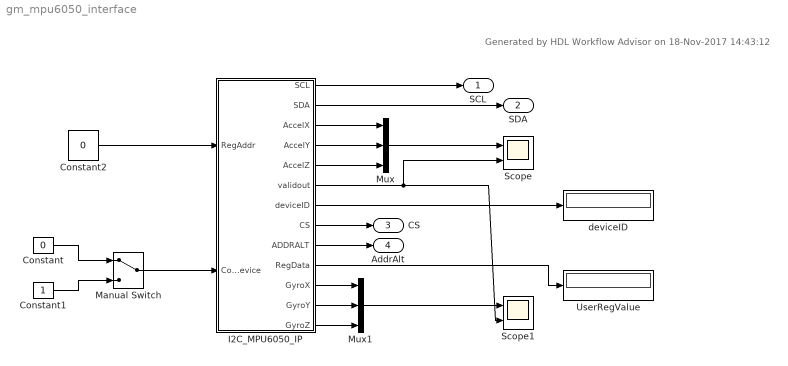
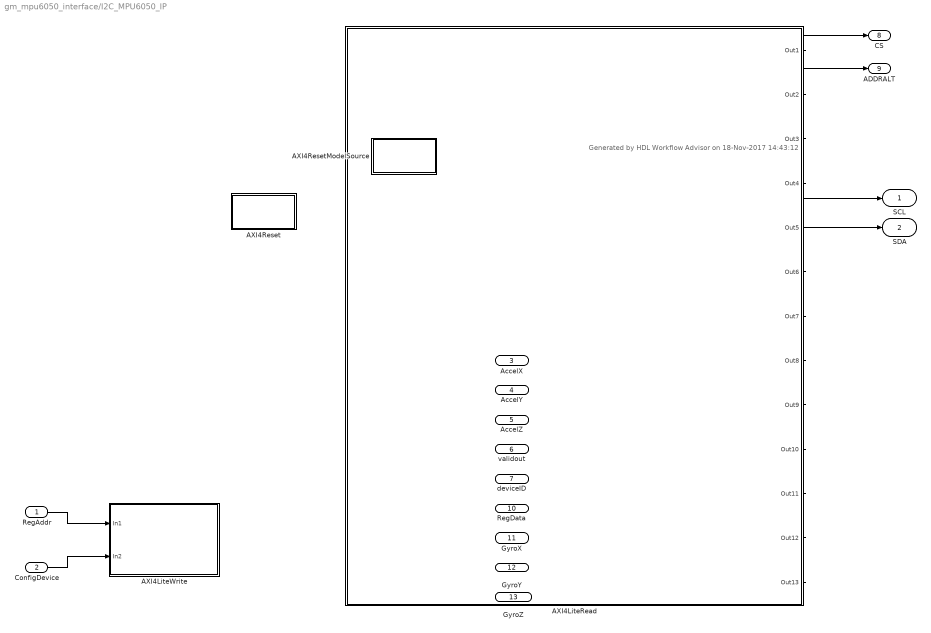
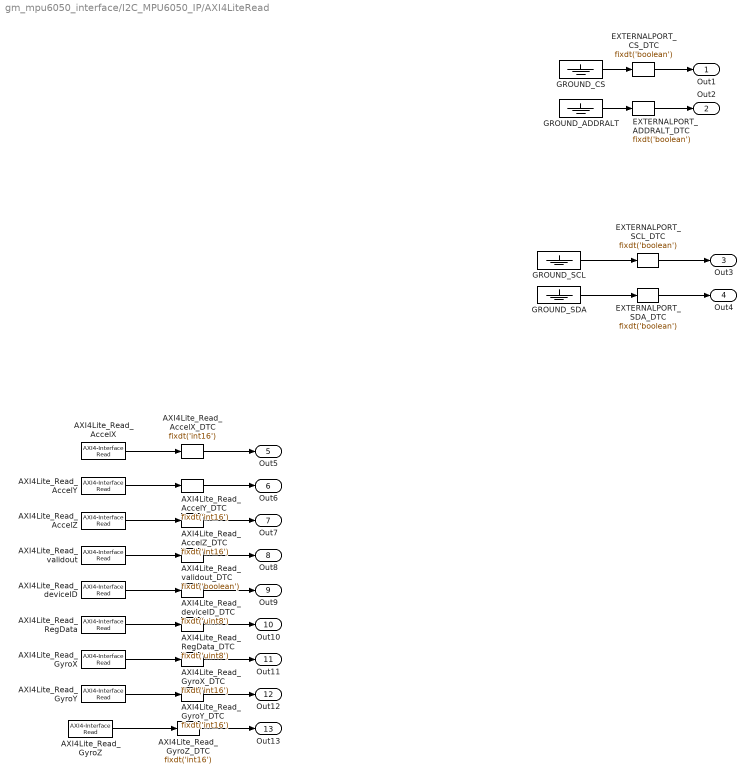
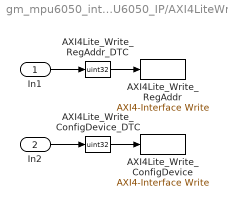
== system gm_mpu6050_interface/I2C_MPU6050_IP/AXI4Reset ==

== system gm_mpu6050_interface/I2C_MPU6050_IP/AXI4ResetModelSource ==

/*
 * Trial License - for use to evaluate programs for possible purchase as
 * an end-user only.
 *
 * File: gm_mpu6050_interface.c
 *
 * Code generated for Simulink model 'gm_mpu6050_interface'.
 *
<<<<<<< HEAD
 * Model version                  : 1.170
 * Simulink Coder version         : 8.12 (R2017a) 16-Feb-2017
 * C/C++ source code generated on : Wed Nov 29 14:17:28 2017
=======
 * Model version                  : 1.279
 * Simulink Coder version         : 8.12 (R2017a) 16-Feb-2017
 * C/C++ source code generated on : Fri Dec 01 18:35:53 2017
>>>>>>> 4c498d00033ba8e3c1028dad581483e8536e1362
 *
 * Target selection: ert.tlc
 * Embedded hardware selection: ARM Compatible->ARM Cortex
 * Code generation objectives: Unspecified
 * Validation result: Not run
 */

#include "gm_mpu6050_interface.h"
#include "gm_mpu6050_interface_private.h"
#include "gm_mpu6050_interface_dt.h"
<<<<<<< HEAD
#define gm_mp_RegisterOffset_hljdmomxqf (276U)
#define gm_mpu6050_RegisterOffset_hljdm (296U)
#define gm_mpu6050__RegisterOffset_hljd (292U)
#define gm_mpu6050_i_RegisterOffset_hlj (288U)
#define gm_mpu6050_in_RegisterOffset_hl (268U)
#define gm_mpu6050_int_RegisterOffset_h (264U)
#define gm_mpu6050_inter_RegisterOffset (260U)
#define gm_mpu605_RegisterOffset_hljdmo (284U)
#define gm_mpu60_RegisterOffset_hljdmom (280U)
#define gm_mpu6_RegisterOffset_hljdmomx (272U)
#define gm_mpu_RegisterOffset_hljdmomxq (256U)
=======
#define gm_mpu6050_RegisterOffset_hljdm (300U)
#define gm_mpu6050__RegisterOffset_hljd (296U)
#define gm_mpu6050_i_RegisterOffset_hlj (292U)
#define gm_mpu6050_in_RegisterOffset_hl (272U)
#define gm_mpu6050_int_RegisterOffset_h (268U)
#define gm_mpu6050_inter_RegisterOffset (264U)
#define gm_mpu605_RegisterOffset_hljdmo (288U)
#define gm_mpu60_RegisterOffset_hljdmom (284U)
#define gm_mpu6_RegisterOffset_hljdmomx (280U)
#define gm_mpu_RegisterOffset_hljdmomxq (276U)
>>>>>>> 4c498d00033ba8e3c1028dad581483e8536e1362

/* user code (top of source file) */
/* System '<Root>/I2C_MPU6050_IP' */
#include "axi_lct.h"

/* Block signals (auto storage) */
B_gm_mpu6050_interface_T gm_mpu6050_interface_B;

/* Block states (auto storage) */
DW_gm_mpu6050_interface_T gm_mpu6050_interface_DW;

<<<<<<< HEAD
=======
/* External inputs (root inport signals with auto storage) */
ExtU_gm_mpu6050_interface_T gm_mpu6050_interface_U;

>>>>>>> 4c498d00033ba8e3c1028dad581483e8536e1362
/* External outputs (root outports fed by signals with auto storage) */
ExtY_gm_mpu6050_interface_T gm_mpu6050_interface_Y;

/* Real-time model */
RT_MODEL_gm_mpu6050_interface_T gm_mpu6050_interface_M_;
RT_MODEL_gm_mpu6050_interface_T *const gm_mpu6050_interface_M =
  &gm_mpu6050_interface_M_;

/* Model step function */
void gm_mpu6050_interface_step(void)
{
  AXI4_struct * p_state;
  uint32_T rtb_AXI4Lite_Write_RegAddr_DTC;
<<<<<<< HEAD
  boolean_T rtb_ManualSwitch;

  /* ManualSwitch: '<Root>/Manual Switch' incorporates:
   *  Constant: '<Root>/Constant'
   *  Constant: '<Root>/Constant1'
   */
  if (gm_mpu6050_interface_P.ManualSwitch_CurrentSetting == 1) {
    rtb_ManualSwitch = gm_mpu6050_interface_P.Constant_Value;
  } else {
    rtb_ManualSwitch = gm_mpu6050_interface_P.Constant1_Value;
  }

  /* End of ManualSwitch: '<Root>/Manual Switch' */
=======
>>>>>>> 4c498d00033ba8e3c1028dad581483e8536e1362

  /* Outputs for Atomic SubSystem: '<Root>/I2C_MPU6050_IP' */

  /* DataTypeConversion: '<S3>/AXI4Lite_Write_RegAddr_DTC' incorporates:
   *  Constant: '<Root>/Constant2'
   */
  rtb_AXI4Lite_Write_RegAddr_DTC = gm_mpu6050_interface_P.Constant2_Value;

<<<<<<< HEAD
  /* Start for MATLABSystem: '<S14>/AXI4-Interface Write' incorporates:
   *  MATLABSystem: '<S14>/AXI4-Interface Write'
   */
  p_state = (AXI4_struct *)(gm_mpu6050_interface_DW.obj_aq.DeviceState);
  AXI4LITE_WRITE(p_state, &rtb_AXI4Lite_Write_RegAddr_DTC,
                 gm_mp_RegisterOffset_hljdmomxqf, 4U);

  /* DataTypeConversion: '<S3>/AXI4Lite_Write_ConfigDevice_DTC' */
  rtb_AXI4Lite_Write_RegAddr_DTC = rtb_ManualSwitch;

  /* Start for MATLABSystem: '<S13>/AXI4-Interface Write' incorporates:
   *  MATLABSystem: '<S13>/AXI4-Interface Write'
   */
  p_state = (AXI4_struct *)(gm_mpu6050_interface_DW.obj_p.DeviceState);
=======
  /* Start for MATLABSystem: '<S13>/AXI4-Interface Write' incorporates:
   *  MATLABSystem: '<S13>/AXI4-Interface Write'
   */
  p_state = (AXI4_struct *)(gm_mpu6050_interface_DW.obj_a.DeviceState);
>>>>>>> 4c498d00033ba8e3c1028dad581483e8536e1362
  AXI4LITE_WRITE(p_state, &rtb_AXI4Lite_Write_RegAddr_DTC,
                 gm_mpu_RegisterOffset_hljdmomxq, 4U);

  /* Start for MATLABSystem: '<S4>/AXI4-Interface Read' incorporates:
   *  MATLABSystem: '<S4>/AXI4-Interface Read'
   */
<<<<<<< HEAD
  p_state = (AXI4_struct *)(gm_mpu6050_interface_DW.obj_a.DeviceState);
=======
  p_state = (AXI4_struct *)(gm_mpu6050_interface_DW.obj_bm.DeviceState);
>>>>>>> 4c498d00033ba8e3c1028dad581483e8536e1362
  AXI4LITE_READ(p_state, &rtb_AXI4Lite_Write_RegAddr_DTC,
                gm_mpu6050_inter_RegisterOffset, 4U);

  /* DataTypeConversion: '<S2>/AXI4Lite_Read_AccelX_DTC' incorporates:
   *  MATLABSystem: '<S4>/AXI4-Interface Read'
   */
  gm_mpu6050_interface_B.AXI4Lite_Read_AccelX_DTC = (int16_T)
    rtb_AXI4Lite_Write_RegAddr_DTC;

  /* Start for MATLABSystem: '<S5>/AXI4-Interface Read' incorporates:
   *  MATLABSystem: '<S5>/AXI4-Interface Read'
   */
<<<<<<< HEAD
  p_state = (AXI4_struct *)(gm_mpu6050_interface_DW.obj_n.DeviceState);
=======
  p_state = (AXI4_struct *)(gm_mpu6050_interface_DW.obj_hs.DeviceState);
>>>>>>> 4c498d00033ba8e3c1028dad581483e8536e1362
  AXI4LITE_READ(p_state, &rtb_AXI4Lite_Write_RegAddr_DTC,
                gm_mpu6050_int_RegisterOffset_h, 4U);

  /* DataTypeConversion: '<S2>/AXI4Lite_Read_AccelY_DTC' incorporates:
   *  MATLABSystem: '<S5>/AXI4-Interface Read'
   */
  gm_mpu6050_interface_B.AXI4Lite_Read_AccelY_DTC = (int16_T)
    rtb_AXI4Lite_Write_RegAddr_DTC;

  /* Start for MATLABSystem: '<S6>/AXI4-Interface Read' incorporates:
   *  MATLABSystem: '<S6>/AXI4-Interface Read'
   */
<<<<<<< HEAD
  p_state = (AXI4_struct *)(gm_mpu6050_interface_DW.obj_fo.DeviceState);
=======
  p_state = (AXI4_struct *)(gm_mpu6050_interface_DW.obj_h.DeviceState);
>>>>>>> 4c498d00033ba8e3c1028dad581483e8536e1362
  AXI4LITE_READ(p_state, &rtb_AXI4Lite_Write_RegAddr_DTC,
                gm_mpu6050_in_RegisterOffset_hl, 4U);

  /* DataTypeConversion: '<S2>/AXI4Lite_Read_AccelZ_DTC' incorporates:
   *  MATLABSystem: '<S6>/AXI4-Interface Read'
   */
  gm_mpu6050_interface_B.AXI4Lite_Read_AccelZ_DTC = (int16_T)
    rtb_AXI4Lite_Write_RegAddr_DTC;

  /* Start for MATLABSystem: '<S12>/AXI4-Interface Read' incorporates:
   *  MATLABSystem: '<S12>/AXI4-Interface Read'
   */
  p_state = (AXI4_struct *)(gm_mpu6050_interface_DW.obj.DeviceState);
  AXI4LITE_READ(p_state, &rtb_AXI4Lite_Write_RegAddr_DTC,
                gm_mpu6_RegisterOffset_hljdmomx, 4U);

  /* DataTypeConversion: '<S2>/AXI4Lite_Read_validout_DTC' incorporates:
   *  MATLABSystem: '<S12>/AXI4-Interface Read'
   */
  gm_mpu6050_interface_B.AXI4Lite_Read_validout_DTC =
    (rtb_AXI4Lite_Write_RegAddr_DTC != 0U);

  /* Start for MATLABSystem: '<S11>/AXI4-Interface Read' incorporates:
   *  MATLABSystem: '<S11>/AXI4-Interface Read'
   */
<<<<<<< HEAD
  p_state = (AXI4_struct *)(gm_mpu6050_interface_DW.obj_f.DeviceState);
=======
  p_state = (AXI4_struct *)(gm_mpu6050_interface_DW.obj_k.DeviceState);
>>>>>>> 4c498d00033ba8e3c1028dad581483e8536e1362
  AXI4LITE_READ(p_state, &rtb_AXI4Lite_Write_RegAddr_DTC,
                gm_mpu60_RegisterOffset_hljdmom, 4U);

  /* DataTypeConversion: '<S2>/AXI4Lite_Read_deviceID_DTC' incorporates:
   *  MATLABSystem: '<S11>/AXI4-Interface Read'
   */
  gm_mpu6050_interface_B.AXI4Lite_Read_deviceID_DTC = (uint8_T)
    rtb_AXI4Lite_Write_RegAddr_DTC;

  /* Start for MATLABSystem: '<S10>/AXI4-Interface Read' incorporates:
   *  MATLABSystem: '<S10>/AXI4-Interface Read'
   */
<<<<<<< HEAD
  p_state = (AXI4_struct *)(gm_mpu6050_interface_DW.obj_d.DeviceState);
=======
  p_state = (AXI4_struct *)(gm_mpu6050_interface_DW.obj_f.DeviceState);
>>>>>>> 4c498d00033ba8e3c1028dad581483e8536e1362
  AXI4LITE_READ(p_state, &rtb_AXI4Lite_Write_RegAddr_DTC,
                gm_mpu605_RegisterOffset_hljdmo, 4U);

  /* DataTypeConversion: '<S2>/AXI4Lite_Read_RegData_DTC' incorporates:
   *  MATLABSystem: '<S10>/AXI4-Interface Read'
   */
  gm_mpu6050_interface_B.AXI4Lite_Read_RegData_DTC = (uint8_T)
    rtb_AXI4Lite_Write_RegAddr_DTC;

  /* Start for MATLABSystem: '<S7>/AXI4-Interface Read' incorporates:
   *  MATLABSystem: '<S7>/AXI4-Interface Read'
   */
<<<<<<< HEAD
  p_state = (AXI4_struct *)(gm_mpu6050_interface_DW.obj_g.DeviceState);
=======
  p_state = (AXI4_struct *)(gm_mpu6050_interface_DW.obj_b.DeviceState);
>>>>>>> 4c498d00033ba8e3c1028dad581483e8536e1362
  AXI4LITE_READ(p_state, &rtb_AXI4Lite_Write_RegAddr_DTC,
                gm_mpu6050_i_RegisterOffset_hlj, 4U);

  /* DataTypeConversion: '<S2>/AXI4Lite_Read_GyroX_DTC' incorporates:
   *  MATLABSystem: '<S7>/AXI4-Interface Read'
   */
  gm_mpu6050_interface_B.AXI4Lite_Read_GyroX_DTC = (int16_T)
    rtb_AXI4Lite_Write_RegAddr_DTC;

  /* Start for MATLABSystem: '<S8>/AXI4-Interface Read' incorporates:
   *  MATLABSystem: '<S8>/AXI4-Interface Read'
   */
<<<<<<< HEAD
  p_state = (AXI4_struct *)(gm_mpu6050_interface_DW.obj_i.DeviceState);
=======
  p_state = (AXI4_struct *)(gm_mpu6050_interface_DW.obj_d.DeviceState);
>>>>>>> 4c498d00033ba8e3c1028dad581483e8536e1362
  AXI4LITE_READ(p_state, &rtb_AXI4Lite_Write_RegAddr_DTC,
                gm_mpu6050__RegisterOffset_hljd, 4U);

  /* DataTypeConversion: '<S2>/AXI4Lite_Read_GyroY_DTC' incorporates:
   *  MATLABSystem: '<S8>/AXI4-Interface Read'
   */
  gm_mpu6050_interface_B.AXI4Lite_Read_GyroY_DTC = (int16_T)
    rtb_AXI4Lite_Write_RegAddr_DTC;

  /* Start for MATLABSystem: '<S9>/AXI4-Interface Read' incorporates:
   *  MATLABSystem: '<S9>/AXI4-Interface Read'
   */
  p_state = (AXI4_struct *)(gm_mpu6050_interface_DW.obj_c.DeviceState);
  AXI4LITE_READ(p_state, &rtb_AXI4Lite_Write_RegAddr_DTC,
                gm_mpu6050_RegisterOffset_hljdm, 4U);

  /* DataTypeConversion: '<S2>/AXI4Lite_Read_GyroZ_DTC' incorporates:
   *  MATLABSystem: '<S9>/AXI4-Interface Read'
   */
  gm_mpu6050_interface_B.AXI4Lite_Read_GyroZ_DTC = (int16_T)
    rtb_AXI4Lite_Write_RegAddr_DTC;

  /* End of Outputs for SubSystem: '<Root>/I2C_MPU6050_IP' */

  /* Outport: '<Root>/SCL' */
  gm_mpu6050_interface_Y.SCL = false;

  /* Outport: '<Root>/SDA' */
  gm_mpu6050_interface_Y.SDA = false;

  /* Outport: '<Root>/CS' */
  gm_mpu6050_interface_Y.CS = false;

  /* Outport: '<Root>/AddrAlt' */
  gm_mpu6050_interface_Y.AddrAlt = false;

  /* External mode */
  rtExtModeUploadCheckTrigger(1);

<<<<<<< HEAD
  {                                    /* Sample time: [8.0E-5s, 0.0s] */
=======
  {                                    /* Sample time: [0.2s, 0.0s] */
>>>>>>> 4c498d00033ba8e3c1028dad581483e8536e1362
    rtExtModeUpload(0, gm_mpu6050_interface_M->Timing.taskTime0);
  }

  /* signal main to stop simulation */
<<<<<<< HEAD
  {                                    /* Sample time: [8.0E-5s, 0.0s] */
=======
  {                                    /* Sample time: [0.2s, 0.0s] */
>>>>>>> 4c498d00033ba8e3c1028dad581483e8536e1362
    if ((rtmGetTFinal(gm_mpu6050_interface_M)!=-1) &&
        !((rtmGetTFinal(gm_mpu6050_interface_M)-
           gm_mpu6050_interface_M->Timing.taskTime0) >
          gm_mpu6050_interface_M->Timing.taskTime0 * (DBL_EPSILON))) {
      rtmSetErrorStatus(gm_mpu6050_interface_M, "Simulation finished");
    }

    if (rtmGetStopRequested(gm_mpu6050_interface_M)) {
      rtmSetErrorStatus(gm_mpu6050_interface_M, "Simulation finished");
    }
  }

  /* Update absolute time for base rate */
  /* The "clockTick0" counts the number of times the code of this task has
   * been executed. The absolute time is the multiplication of "clockTick0"
   * and "Timing.stepSize0". Size of "clockTick0" ensures timer will not
   * overflow during the application lifespan selected.
   */
  gm_mpu6050_interface_M->Timing.taskTime0 =
    (++gm_mpu6050_interface_M->Timing.clockTick0) *
    gm_mpu6050_interface_M->Timing.stepSize0;
}
